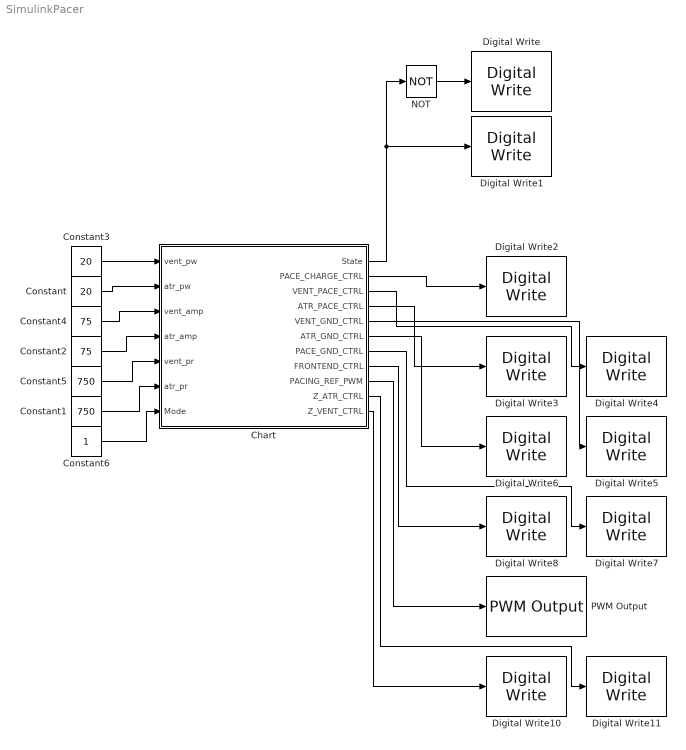
== stateflow chart SimulinkPacer/Chart ==
  state VOO_Pacing
    entry:
    State = 1
    PACE_CHARGE_CTRL = 0
    PACE_GND_CTRL = 1
    ATR_PACE_CTRL = 0
    ATR_GND_CTRL = 0
    Z_ATR_CTRL = 0
    Z_VENT_CTRL = 0
    VENT_GND_CTRL = 0
    VENT_PACE_CTRL = 1
    FRONTEND_CTRL = 0
    PACING_REF_PWM = vent_amp
  state VOO_Charging
    entry:
    State = 0
    PACE_GND_CTRL = 1
    VENT_PACE_CTRL = 0
    Z_ATR_CTRL = 0
    Z_VENT_CTRL = 0
    ATR_GND_CTRL = 0
    VENT_GND_CTRL = 1
    ATR_PACE_CTRL = 0
    PACING_REF_PWM = vent_amp
    PACE_CHARGE_CTRL = 1
    FRONTEND_CTRL = 0
  state ModeSelect
  state AOO_Pacing
    entry:
    State = 1
    PACE_CHARGE_CTRL = 0
    PACE_GND_CTRL = 1
    ATR_PACE_CTRL = 1
    ATR_GND_CTRL = 0
    Z_ATR_CTRL = 0
    Z_VENT_CTRL = 0
    VENT_GND_CTRL = 0
    VENT_PACE_CTRL = 0
    FRONTEND_CTRL = 0
    PACING_REF_PWM = atr_amp
  state AOO_Charging
    entry:
    State = 0
    PACE_GND_CTRL = 1
    VENT_PACE_CTRL = 0
    Z_ATR_CTRL = 0
    Z_VENT_CTRL = 0
    ATR_GND_CTRL = 1
    VENT_GND_CTRL = 0
    ATR_PACE_CTRL = 0
    PACING_REF_PWM = atr_amp
    PACE_CHARGE_CTRL = 1
    FRONTEND_CTRL = 0
  state VII_Pacing
    entry:
    State = 1
    PACE_CHARGE_CTRL = 0
    PACE_GND_CTRL = 1
    ATR_PACE_CTRL = 0
    ATR_GND_CTRL = 0
    Z_ATR_CTRL = 0
    Z_VENT_CTRL = 0
    VENT_GND_CTRL = 0
    VENT_PACE_CTRL = 1
    FRONTEND_CTRL = 0
    PACING_REF_PWM = vent_amp
  state VII_Charging
    entry:
    State = 0
    PACE_GND_CTRL = 1
    VENT_PACE_CTRL = 0
    Z_ATR_CTRL = 0
    Z_VENT_CTRL = 0
    ATR_GND_CTRL = 0
    VENT_GND_CTRL = 1
    ATR_PACE_CTRL = 0
    PACING_REF_PWM = vent_amp
    PACE_CHARGE_CTRL = 1
    FRONTEND_CTRL = 0
  (default) -> ModeSelect
  ModeSelect -> VOO_Charging [order 1] : [Mode == 1]
  VOO_Pacing -> VOO_Charging : [after(vent_pw, msec)]
  ModeSelect -> VII_Charging [order 3] : [Mode == 3]
  ModeSelect -> AOO_Charging [order 2] : [Mode == 2]
  VOO_Charging -> VOO_Pacing : [after(vent_pr - vent_pw, msec)]
  AOO_Pacing -> AOO_Charging : [after(atr_pw, msec)]
  AOO_Charging -> AOO_Pacing : [after(atr_pr - atr_pw, msec)]
  VII_Pacing -> VII_Charging : [after(vent_pw, msec)]
  VII_Charging -> VII_Pacing : [after(vent_pr - vent_pw, msec)]
  data: vent_pw input; atr_pw input; vent_amp input; atr_amp input; vent_pr input; atr_pr input; State output double =0; PACE_CHARGE_CTRL output; VENT_PACE_CTRL output; ATR_PACE_CTRL output; VENT_GND_CTRL output; ATR_GND_CTRL output; PACE_GND_CTRL output; FRONTEND_CTRL output; PACING_REF_PWM output; Z_ATR_CTRL output; Z_VENT_CTRL output; Mode input

/*
 * Academic License - for use in teaching, academic research, and meeting
 * course requirements at degree granting institutions only.  Not for
 * government, commercial, or other organizational use.
 *
 * File: SimulinkPacer.c
 *
 * Code generated for Simulink model 'SimulinkPacer'.
 *
 * Model version                  : 5.14
 * Simulink Coder version         : 9.7 (R2022a) 13-Nov-2021
 * C/C++ source code generated on : Mon Oct 17 10:59:07 2022
 *
 * Target selection: ert.tlc
 * Embedded hardware selection: ARM Compatible->ARM Cortex
 * Code generation objectives: Unspecified
 * Validation result: Not run
 */

#include "SimulinkPacer.h"
#include "rtwtypes.h"
#include <math.h>
#include "SimulinkPacer_types.h"

/* Named constants for Chart: '<Root>/Chart' */
#define SimulinkPacer_IN_AOO_Charging  ((uint8_T)1U)
#define SimulinkPacer_IN_AOO_Pacing    ((uint8_T)2U)
#define SimulinkPacer_IN_ModeSelect    ((uint8_T)3U)
#define SimulinkPacer_IN_VII_Charging  ((uint8_T)4U)
#define SimulinkPacer_IN_VII_Pacing    ((uint8_T)5U)
#define SimulinkPacer_IN_VOO_Charging  ((uint8_T)6U)
#define SimulinkPacer_IN_VOO_Pacing    ((uint8_T)7U)

/* Block signals (default storage) */
B_SimulinkPacer_T SimulinkPacer_B;

/* Block states (default storage) */
DW_SimulinkPacer_T SimulinkPacer_DW;

/* Real-time model */
static RT_MODEL_SimulinkPacer_T SimulinkPacer_M_;
RT_MODEL_SimulinkPacer_T *const SimulinkPacer_M = &SimulinkPacer_M_;

/* Forward declaration for local functions */
static void Simul_enter_atomic_VII_Charging(void);
static void Simul_enter_atomic_AOO_Charging(void);

/* Function for Chart: '<Root>/Chart' */
static void Simul_enter_atomic_VII_Charging(void)
{
  SimulinkPacer_B.State = 0.0;
  SimulinkPacer_B.PACE_GND_CTRL = 1.0;
  SimulinkPacer_B.VENT_PACE_CTRL = 0.0;
  SimulinkPacer_B.Z_ATR_CTRL = 0.0;
  SimulinkPacer_B.Z_VENT_CTRL = 0.0;
  SimulinkPacer_B.ATR_GND_CTRL = 0.0;
  SimulinkPacer_B.VENT_GND_CTRL = 1.0;
  SimulinkPacer_B.ATR_PACE_CTRL = 0.0;

  /* Constant: '<Root>/Constant4' */
  SimulinkPacer_B.PACING_REF_PWM = SimulinkPacer_P.Constant4_Value;
  SimulinkPacer_B.PACE_CHARGE_CTRL = 1.0;
  SimulinkPacer_B.FRONTEND_CTRL = 0.0;
}

/* Function for Chart: '<Root>/Chart' */
static void Simul_enter_atomic_AOO_Charging(void)
{
  SimulinkPacer_B.State = 0.0;
  SimulinkPacer_B.PACE_GND_CTRL = 1.0;
  SimulinkPacer_B.VENT_PACE_CTRL = 0.0;
  SimulinkPacer_B.Z_ATR_CTRL = 0.0;
  SimulinkPacer_B.Z_VENT_CTRL = 0.0;
  SimulinkPacer_B.ATR_GND_CTRL = 1.0;
  SimulinkPacer_B.VENT_GND_CTRL = 0.0;
  SimulinkPacer_B.ATR_PACE_CTRL = 0.0;

  /* Constant: '<Root>/Constant2' */
  SimulinkPacer_B.PACING_REF_PWM = SimulinkPacer_P.Constant2_Value;
  SimulinkPacer_B.PACE_CHARGE_CTRL = 1.0;
  SimulinkPacer_B.FRONTEND_CTRL = 0.0;
}

/* Model step function */
void SimulinkPacer_step(void)
{
  /* Chart: '<Root>/Chart' incorporates:
   *  Constant: '<Root>/Constant'
   *  Constant: '<Root>/Constant1'
   *  Constant: '<Root>/Constant2'
   *  Constant: '<Root>/Constant3'
   *  Constant: '<Root>/Constant4'
   *  Constant: '<Root>/Constant5'
   *  Constant: '<Root>/Constant6'
   */
  if (SimulinkPacer_DW.temporalCounter_i1 < MAX_uint32_T) {
    SimulinkPacer_DW.temporalCounter_i1++;
  }

  if (SimulinkPacer_DW.is_active_c3_SimulinkPacer == 0U) {
    SimulinkPacer_DW.is_active_c3_SimulinkPacer = 1U;
    SimulinkPacer_DW.is_c3_SimulinkPacer = SimulinkPacer_IN_ModeSelect;
  } else {
    switch (SimulinkPacer_DW.is_c3_SimulinkPacer) {
     case SimulinkPacer_IN_AOO_Charging:
      SimulinkPacer_B.State = 0.0;
      SimulinkPacer_B.PACE_GND_CTRL = 1.0;
      SimulinkPacer_B.VENT_PACE_CTRL = 0.0;
      SimulinkPacer_B.Z_ATR_CTRL = 0.0;
      SimulinkPacer_B.Z_VENT_CTRL = 0.0;
      SimulinkPacer_B.ATR_GND_CTRL = 1.0;
      SimulinkPacer_B.VENT_GND_CTRL = 0.0;
      SimulinkPacer_B.ATR_PACE_CTRL = 0.0;
      SimulinkPacer_B.PACE_CHARGE_CTRL = 1.0;
      SimulinkPacer_B.FRONTEND_CTRL = 0.0;
      if (SimulinkPacer_DW.temporalCounter_i1 >= (uint32_T)ceil
          (SimulinkPacer_P.Constant1_Value - SimulinkPacer_P.Constant_Value)) {
        SimulinkPacer_DW.is_c3_SimulinkPacer = SimulinkPacer_IN_AOO_Pacing;
        SimulinkPacer_DW.temporalCounter_i1 = 0U;
        SimulinkPacer_B.State = 1.0;
        SimulinkPacer_B.PACE_CHARGE_CTRL = 0.0;
        SimulinkPacer_B.ATR_PACE_CTRL = 1.0;
        SimulinkPacer_B.ATR_GND_CTRL = 0.0;
        SimulinkPacer_B.PACING_REF_PWM = SimulinkPacer_P.Constant2_Value;
      }
      break;

     case SimulinkPacer_IN_AOO_Pacing:
      SimulinkPacer_B.State = 1.0;
      SimulinkPacer_B.PACE_CHARGE_CTRL = 0.0;
      SimulinkPacer_B.PACE_GND_CTRL = 1.0;
      SimulinkPacer_B.ATR_PACE_CTRL = 1.0;
      SimulinkPacer_B.ATR_GND_CTRL = 0.0;
      SimulinkPacer_B.Z_ATR_CTRL = 0.0;
      SimulinkPacer_B.Z_VENT_CTRL = 0.0;
      SimulinkPacer_B.VENT_GND_CTRL = 0.0;
      SimulinkPacer_B.VENT_PACE_CTRL = 0.0;
      SimulinkPacer_B.FRONTEND_CTRL = 0.0;
      if (SimulinkPacer_DW.temporalCounter_i1 >= (uint32_T)ceil
          (SimulinkPacer_P.Constant_Value)) {
        SimulinkPacer_DW.is_c3_SimulinkPacer = SimulinkPacer_IN_AOO_Charging;
        SimulinkPacer_DW.temporalCounter_i1 = 0U;
        Simul_enter_atomic_AOO_Charging();
      }
      break;

     case SimulinkPacer_IN_ModeSelect:
      if (SimulinkPacer_P.Constant6_Value == 1.0) {
        SimulinkPacer_DW.is_c3_SimulinkPacer = SimulinkPacer_IN_VOO_Charging;
        SimulinkPacer_DW.temporalCounter_i1 = 0U;
        Simul_enter_atomic_VII_Charging();
      } else if (SimulinkPacer_P.Constant6_Value == 2.0) {
        SimulinkPacer_DW.is_c3_SimulinkPacer = SimulinkPacer_IN_AOO_Charging;
        SimulinkPacer_DW.temporalCounter_i1 = 0U;
        Simul_enter_atomic_AOO_Charging();
      } else if (SimulinkPacer_P.Constant6_Value == 3.0) {
        SimulinkPacer_DW.is_c3_SimulinkPacer = SimulinkPacer_IN_VII_Charging;
        SimulinkPacer_DW.temporalCounter_i1 = 0U;
        Simul_enter_atomic_VII_Charging();
      }
      break;

     case SimulinkPacer_IN_VII_Charging:
      SimulinkPacer_B.State = 0.0;
      SimulinkPacer_B.PACE_GND_CTRL = 1.0;
      SimulinkPacer_B.VENT_PACE_CTRL = 0.0;
      SimulinkPacer_B.Z_ATR_CTRL = 0.0;
      SimulinkPacer_B.Z_VENT_CTRL = 0.0;
      SimulinkPacer_B.ATR_GND_CTRL = 0.0;
      SimulinkPacer_B.VENT_GND_CTRL = 1.0;
      SimulinkPacer_B.ATR_PACE_CTRL = 0.0;
      SimulinkPacer_B.PACE_CHARGE_CTRL = 1.0;
      SimulinkPacer_B.FRONTEND_CTRL = 0.0;
      if (SimulinkPacer_DW.temporalCounter_i1 >= (uint32_T)ceil
          (SimulinkPacer_P.Constant5_Value - SimulinkPacer_P.Constant3_Value)) {
        SimulinkPacer_DW.is_c3_SimulinkPacer = SimulinkPacer_IN_VII_Pacing;
        SimulinkPacer_DW.temporalCounter_i1 = 0U;
        SimulinkPacer_B.State = 1.0;
        SimulinkPacer_B.PACE_CHARGE_CTRL = 0.0;
        SimulinkPacer_B.VENT_GND_CTRL = 0.0;
        SimulinkPacer_B.VENT_PACE_CTRL = 1.0;
        SimulinkPacer_B.PACING_REF_PWM = SimulinkPacer_P.Constant4_Value;
      }
      break;

     case SimulinkPacer_IN_VII_Pacing:
      SimulinkPacer_B.State = 1.0;
      SimulinkPacer_B.PACE_CHARGE_CTRL = 0.0;
      SimulinkPacer_B.PACE_GND_CTRL = 1.0;
      SimulinkPacer_B.ATR_PACE_CTRL = 0.0;
      SimulinkPacer_B.ATR_GND_CTRL = 0.0;
      SimulinkPacer_B.Z_ATR_CTRL = 0.0;
      SimulinkPacer_B.Z_VENT_CTRL = 0.0;
      SimulinkPacer_B.VENT_GND_CTRL = 0.0;
      SimulinkPacer_B.VENT_PACE_CTRL = 1.0;
      SimulinkPacer_B.FRONTEND_CTRL = 0.0;
      if (SimulinkPacer_DW.temporalCounter_i1 >= (uint32_T)ceil
          (SimulinkPacer_P.Constant3_Value)) {
        SimulinkPacer_DW.is_c3_SimulinkPacer = SimulinkPacer_IN_VII_Charging;
        SimulinkPacer_DW.temporalCounter_i1 = 0U;
        Simul_enter_atomic_VII_Charging();
      }
      break;

     case SimulinkPacer_IN_VOO_Charging:
      SimulinkPacer_B.State = 0.0;
      SimulinkPacer_B.PACE_GND_CTRL = 1.0;
      SimulinkPacer_B.VENT_PACE_CTRL = 0.0;
      SimulinkPacer_B.Z_ATR_CTRL = 0.0;
      SimulinkPacer_B.Z_VENT_CTRL = 0.0;
      SimulinkPacer_B.ATR_GND_CTRL = 0.0;
      SimulinkPacer_B.VENT_GND_CTRL = 1.0;
      SimulinkPacer_B.ATR_PACE_CTRL = 0.0;
      SimulinkPacer_B.PACE_CHARGE_CTRL = 1.0;
      SimulinkPacer_B.FRONTEND_CTRL = 0.0;
      if (SimulinkPacer_DW.temporalCounter_i1 >= (uint32_T)ceil
          (SimulinkPacer_P.Constant5_Value - SimulinkPacer_P.Constant3_Value)) {
        SimulinkPacer_DW.is_c3_SimulinkPacer = SimulinkPacer_IN_VOO_Pacing;
        SimulinkPacer_DW.temporalCounter_i1 = 0U;
        SimulinkPacer_B.State = 1.0;
        SimulinkPacer_B.PACE_CHARGE_CTRL = 0.0;
        SimulinkPacer_B.VENT_GND_CTRL = 0.0;
        SimulinkPacer_B.VENT_PACE_CTRL = 1.0;
        SimulinkPacer_B.PACING_REF_PWM = SimulinkPacer_P.Constant4_Value;
      }
      break;

     default:
      /* case IN_VOO_Pacing: */
      SimulinkPacer_B.State = 1.0;
      SimulinkPacer_B.PACE_CHARGE_CTRL = 0.0;
      SimulinkPacer_B.PACE_GND_CTRL = 1.0;
      SimulinkPacer_B.ATR_PACE_CTRL = 0.0;
      SimulinkPacer_B.ATR_GND_CTRL = 0.0;
      SimulinkPacer_B.Z_ATR_CTRL = 0.0;
      SimulinkPacer_B.Z_VENT_CTRL = 0.0;
      SimulinkPacer_B.VENT_GND_CTRL = 0.0;
      SimulinkPacer_B.VENT_PACE_CTRL = 1.0;
      SimulinkPacer_B.FRONTEND_CTRL = 0.0;
      if (SimulinkPacer_DW.temporalCounter_i1 >= (uint32_T)ceil
          (SimulinkPacer_P.Constant3_Value)) {
        SimulinkPacer_DW.is_c3_SimulinkPacer = SimulinkPacer_IN_VOO_Charging;
        SimulinkPacer_DW.temporalCounter_i1 = 0U;
        Simul_enter_atomic_VII_Charging();
      }
      break;
    }
  }

  /* End of Chart: '<Root>/Chart' */

  /* MATLABSystem: '<Root>/Digital Write' incorporates:
   *  Logic: '<Root>/NOT'
   */
  MW_digitalIO_write(SimulinkPacer_DW.obj_mo.MW_DIGITALIO_HANDLE,
                     !(SimulinkPacer_B.State != 0.0));

  /* MATLABSystem: '<Root>/Digital Write1' */
  MW_digitalIO_write(SimulinkPacer_DW.obj_i.MW_DIGITALIO_HANDLE,
                     SimulinkPacer_B.State != 0.0);

  /* MATLABSystem: '<Root>/Digital Write10' */
  MW_digitalIO_write(SimulinkPacer_DW.obj_o.MW_DIGITALIO_HANDLE,
                     SimulinkPacer_B.Z_VENT_CTRL != 0.0);

  /* MATLABSystem: '<Root>/Digital Write11' */
  MW_digitalIO_write(SimulinkPacer_DW.obj_m.MW_DIGITALIO_HANDLE,
                     SimulinkPacer_B.Z_ATR_CTRL != 0.0);

  /* MATLABSystem: '<Root>/Digital Write2' */
  MW_digitalIO_write(SimulinkPacer_DW.obj_e.MW_DIGITALIO_HANDLE,
                     SimulinkPacer_B.PACE_CHARGE_CTRL != 0.0);

  /* MATLABSystem: '<Root>/Digital Write3' */
  MW_digitalIO_write(SimulinkPacer_DW.obj_p.MW_DIGITALIO_HANDLE,
                     SimulinkPacer_B.ATR_PACE_CTRL != 0.0);

  /* MATLABSystem: '<Root>/Digital Write4' */
  MW_digitalIO_write(SimulinkPacer_DW.obj_j.MW_DIGITALIO_HANDLE,
                     SimulinkPacer_B.VENT_PACE_CTRL != 0.0);

  /* MATLABSystem: '<Root>/Digital Write5' */
  MW_digitalIO_write(SimulinkPacer_DW.obj_l.MW_DIGITALIO_HANDLE,
                     SimulinkPacer_B.VENT_GND_CTRL != 0.0);

  /* MATLABSystem: '<Root>/Digital Write6' */
  MW_digitalIO_write(SimulinkPacer_DW.obj_h.MW_DIGITALIO_HANDLE,
                     SimulinkPacer_B.ATR_GND_CTRL != 0.0);

  /* MATLABSystem: '<Root>/Digital Write7' */
  MW_digitalIO_write(SimulinkPacer_DW.obj_b.MW_DIGITALIO_HANDLE,
                     SimulinkPacer_B.PACE_GND_CTRL != 0.0);

  /* MATLABSystem: '<Root>/Digital Write8' */
  MW_digitalIO_write(SimulinkPacer_DW.obj.MW_DIGITALIO_HANDLE,
                     SimulinkPacer_B.FRONTEND_CTRL != 0.0);

  /* MATLABSystem: '<Root>/PWM Output' */
  MW_PWM_SetDutyCycle(SimulinkPacer_DW.obj_c.MW_PWM_HANDLE,
                      SimulinkPacer_B.PACING_REF_PWM);
}
